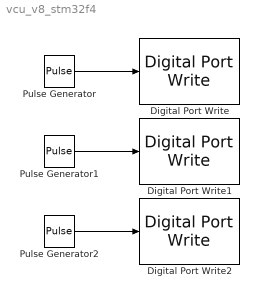
/*
 * File: vcu_v8_stm32f4.c
 *
 * Code generated for Simulink model 'vcu_v8_stm32f4'.
 *
 * Model version                  : 1.1
 * Simulink Coder version         : 23.2 (R2023b) 01-Aug-2023
 * C/C++ source code generated on : Thu Jul 25 09:51:42 2024
 *
 * Target selection: ert.tlc
 * Embedded hardware selection: ARM Compatible->ARM Cortex
 * Code generation objectives: Unspecified
 * Validation result: Not run
 */

#include "vcu_v8_stm32f4.h"
#include "rtwtypes.h"

/* Block states (default storage) */
DW_vcu_v8_stm32f4_T vcu_v8_stm32f4_DW;

/* Real-time model */
static RT_MODEL_vcu_v8_stm32f4_T vcu_v8_stm32f4_M_;
RT_MODEL_vcu_v8_stm32f4_T *const vcu_v8_stm32f4_M = &vcu_v8_stm32f4_M_;
static void rate_monotonic_scheduler(void);

/*
 * Set which subrates need to run this base step (base rate always runs).
 * This function must be called prior to calling the model step function
 * in order to remember which rates need to run this base step.  The
 * buffering of events allows for overlapping preemption.
 */
void vcu_v8_stm32f4_SetEventsForThisBaseStep(boolean_T *eventFlags)
{
  /* Task runs when its counter is zero, computed via rtmStepTask macro */
  eventFlags[1] = ((boolean_T)rtmStepTask(vcu_v8_stm32f4_M, 1));
  eventFlags[2] = ((boolean_T)rtmStepTask(vcu_v8_stm32f4_M, 2));
}

/*
 *         This function updates active task flag for each subrate
 *         and rate transition flags for tasks that exchange data.
 *         The function assumes rate-monotonic multitasking scheduler.
 *         The function must be called at model base rate so that
 *         the generated code self-manages all its subrates and rate
 *         transition flags.
 */
static void rate_monotonic_scheduler(void)
{
  /* Compute which subrates run during the next base time step.  Subrates
   * are an integer multiple of the base rate counter.  Therefore, the subtask
   * counter is reset when it reaches its limit (zero means run).
   */
  (vcu_v8_stm32f4_M->Timing.TaskCounters.TID[1])++;
  if ((vcu_v8_stm32f4_M->Timing.TaskCounters.TID[1]) > 2) {/* Sample time: [1.5s, 0.0s] */
    vcu_v8_stm32f4_M->Timing.TaskCounters.TID[1] = 0;
  }

  (vcu_v8_stm32f4_M->Timing.TaskCounters.TID[2])++;
  if ((vcu_v8_stm32f4_M->Timing.TaskCounters.TID[2]) > 4) {/* Sample time: [2.5s, 0.0s] */
    vcu_v8_stm32f4_M->Timing.TaskCounters.TID[2] = 0;
  }
}

/* Model step function for TID0 */
void vcu_v8_stm32f4_step0(void)        /* Sample time: [0.5s, 0.0s] */
{
  GPIO_TypeDef * portNameLoc;
  real_T rtb_PulseGenerator;
  int32_T c;

  {                                    /* Sample time: [0.5s, 0.0s] */
    rate_monotonic_scheduler();
  }

  /* DiscretePulseGenerator: '<Root>/Pulse Generator' */
  rtb_PulseGenerator = (vcu_v8_stm32f4_DW.clockTickCounter <
                        vcu_v8_stm32f4_P.PulseGenerator_Duty) &&
    (vcu_v8_stm32f4_DW.clockTickCounter >= 0) ?
    vcu_v8_stm32f4_P.PulseGenerator_Amp : 0.0;
  if (vcu_v8_stm32f4_DW.clockTickCounter >=
      vcu_v8_stm32f4_P.PulseGenerator_Period - 1.0) {
    vcu_v8_stm32f4_DW.clockTickCounter = 0;
  } else {
    vcu_v8_stm32f4_DW.clockTickCounter++;
  }

  /* End of DiscretePulseGenerator: '<Root>/Pulse Generator' */

  /* MATLABSystem: '<S5>/Digital Port Write' */
  portNameLoc = GPIOC;
  if (rtb_PulseGenerator != 0.0) {
    c = 1024;
  } else {
    c = 0;
  }

  LL_GPIO_SetOutputPin(portNameLoc, (uint32_T)c);
  LL_GPIO_ResetOutputPin(portNameLoc, ~(uint32_T)c & 1024U);

  /* End of MATLABSystem: '<S5>/Digital Port Write' */
}

/* Model step function for TID1 */
void vcu_v8_stm32f4_step1(void)        /* Sample time: [1.5s, 0.0s] */
{
  GPIO_TypeDef * portNameLoc;
  real_T rtb_PulseGenerator1;
  int32_T c;

  /* DiscretePulseGenerator: '<Root>/Pulse Generator1' */
  rtb_PulseGenerator1 = (vcu_v8_stm32f4_DW.clockTickCounter_f <
    vcu_v8_stm32f4_P.PulseGenerator1_Duty) &&
    (vcu_v8_stm32f4_DW.clockTickCounter_f >= 0) ?
    vcu_v8_stm32f4_P.PulseGenerator1_Amp : 0.0;
  if (vcu_v8_stm32f4_DW.clockTickCounter_f >=
      vcu_v8_stm32f4_P.PulseGenerator1_Period - 1.0) {
    vcu_v8_stm32f4_DW.clockTickCounter_f = 0;
  } else {
    vcu_v8_stm32f4_DW.clockTickCounter_f++;
  }

  /* End of DiscretePulseGenerator: '<Root>/Pulse Generator1' */

  /* MATLABSystem: '<S7>/Digital Port Write' */
  portNameLoc = GPIOC;
  if (rtb_PulseGenerator1 != 0.0) {
    c = 2048;
  } else {
    c = 0;
  }

  LL_GPIO_SetOutputPin(portNameLoc, (uint32_T)c);
  LL_GPIO_ResetOutputPin(portNameLoc, ~(uint32_T)c & 2048U);

  /* End of MATLABSystem: '<S7>/Digital Port Write' */
}

/* Model step function for TID2 */
void vcu_v8_stm32f4_step2(void)        /* Sample time: [2.5s, 0.0s] */
{
  GPIO_TypeDef * portNameLoc;
  real_T rtb_PulseGenerator2;
  int32_T c;

  /* DiscretePulseGenerator: '<Root>/Pulse Generator2' */
  rtb_PulseGenerator2 = (vcu_v8_stm32f4_DW.clockTickCounter_g <
    vcu_v8_stm32f4_P.PulseGenerator2_Duty) &&
    (vcu_v8_stm32f4_DW.clockTickCounter_g >= 0) ?
    vcu_v8_stm32f4_P.PulseGenerator2_Amp : 0.0;
  if (vcu_v8_stm32f4_DW.clockTickCounter_g >=
      vcu_v8_stm32f4_P.PulseGenerator2_Period - 1.0) {
    vcu_v8_stm32f4_DW.clockTickCounter_g = 0;
  } else {
    vcu_v8_stm32f4_DW.clockTickCounter_g++;
  }

  /* End of DiscretePulseGenerator: '<Root>/Pulse Generator2' */

  /* MATLABSystem: '<S9>/Digital Port Write' */
  portNameLoc = GPIOC;
  if (rtb_PulseGenerator2 != 0.0) {
    c = 4096;
  } else {
    c = 0;
  }

  LL_GPIO_SetOutputPin(portNameLoc, (uint32_T)c);
  LL_GPIO_ResetOutputPin(portNameLoc, ~(uint32_T)c & 4096U);

  /* End of MATLABSystem: '<S9>/Digital Port Write' */
}
